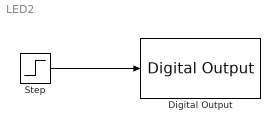
/*
 * File: LED2.c
 *
 * Code generated for Simulink model 'LED2'.
 *
 * Model version                  : 1.1
 * Simulink Coder version         : 8.9 (R2015b) 13-Aug-2015
 * C/C++ source code generated on : Mon Jan 30 20:12:50 2017
 *
 * Target selection: ert.tlc
 * Embedded hardware selection: Atmel->AVR
 * Code generation objectives: Unspecified
 * Validation result: Not run
 */

#include "LED2.h"
#include "LED2_private.h"
#include "LED2_dt.h"

/* Block signals (auto storage) */
B_LED2_T LED2_B;

/* Real-time model */
RT_MODEL_LED2_T LED2_M_;
RT_MODEL_LED2_T *const LED2_M = &LED2_M_;

/* Model step function */
void LED2_step(void)
{
  real_T currentTime;

  /* Step: '<Root>/Step' incorporates:
   *  DataTypeConversion: '<S1>/Data Type Conversion'
   */
  currentTime = LED2_M->Timing.t[0];
  if (currentTime < LED2_P.Step_Time) {
    /* DataTypeConversion: '<S1>/Data Type Conversion' */
    if (LED2_P.Step_Y0 < 256.0) {
      if (LED2_P.Step_Y0 >= 0.0) {
        LED2_B.DataTypeConversion = (uint8_T)LED2_P.Step_Y0;
      } else {
        LED2_B.DataTypeConversion = 0U;
      }
    } else {
      LED2_B.DataTypeConversion = MAX_uint8_T;
    }
  } else if (LED2_P.Step_YFinal < 256.0) {
    /* DataTypeConversion: '<S1>/Data Type Conversion' */
    if (LED2_P.Step_YFinal >= 0.0) {
      LED2_B.DataTypeConversion = (uint8_T)LED2_P.Step_YFinal;
    } else {
      LED2_B.DataTypeConversion = 0U;
    }
  } else {
    /* DataTypeConversion: '<S1>/Data Type Conversion' */
    LED2_B.DataTypeConversion = MAX_uint8_T;
  }

  /* End of Step: '<Root>/Step' */

  /* S-Function (arduinodigitaloutput_sfcn): '<S1>/Digital Output' */
  MW_digitalWrite(LED2_P.DigitalOutput_pinNumber, LED2_B.DataTypeConversion);

  /* External mode */
  rtExtModeUploadCheckTrigger(2);

  {                                    /* Sample time: [0.0s, 0.0s] */
    rtExtModeUpload(0, LED2_M->Timing.t[0]);
  }

  {                                    /* Sample time: [0.2s, 0.0s] */
    rtExtModeUpload(1, ((LED2_M->Timing.clockTick1) * 0.2));
  }

  /* signal main to stop simulation */
  {                                    /* Sample time: [0.0s, 0.0s] */
    if ((rtmGetTFinal(LED2_M)!=-1) &&
        !((rtmGetTFinal(LED2_M)-LED2_M->Timing.t[0]) > LED2_M->Timing.t[0] *
          (DBL_EPSILON))) {
      rtmSetErrorStatus(LED2_M, "Simulation finished");
    }

    if (rtmGetStopRequested(LED2_M)) {
      rtmSetErrorStatus(LED2_M, "Simulation finished");
    }
  }

  /* Update absolute time for base rate */
  /* The "clockTick0" counts the number of times the code of this task has
   * been executed. The absolute time is the multiplication of "clockTick0"
   * and "Timing.stepSize0". Size of "clockTick0" ensures timer will not
   * overflow during the application lifespan selected.
   */
  LED2_M->Timing.t[0] =
    (++LED2_M->Timing.clockTick0) * LED2_M->Timing.stepSize0;

  {
    /* Update absolute timer for sample time: [0.2s, 0.0s] */
    /* The "clockTick1" counts the number of times the code of this task has
     * been executed. The resolution of this integer timer is 0.2, which is the step size
     * of the task. Size of "clockTick1" ensures timer will not overflow during the
     * application lifespan selected.
     */
    LED2_M->Timing.clockTick1++;
  }
}
